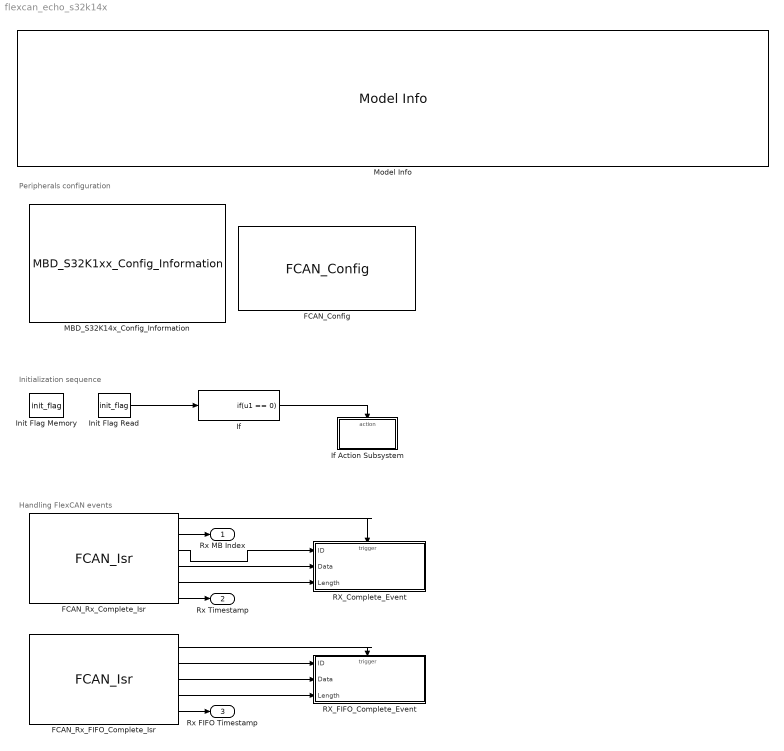
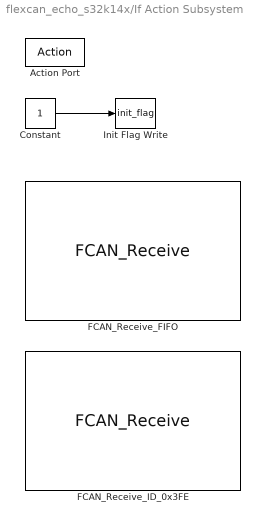
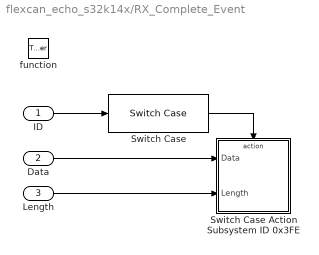
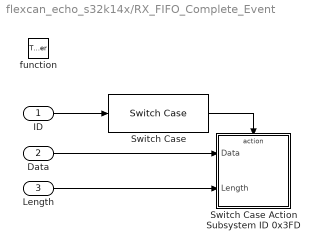
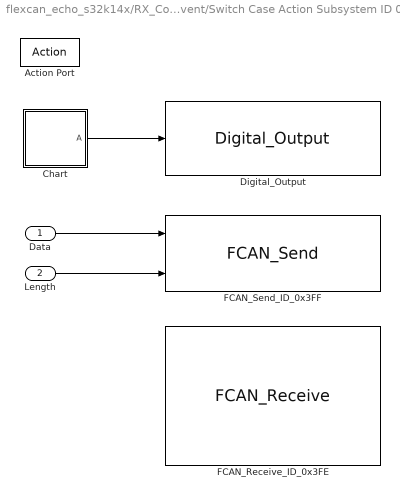
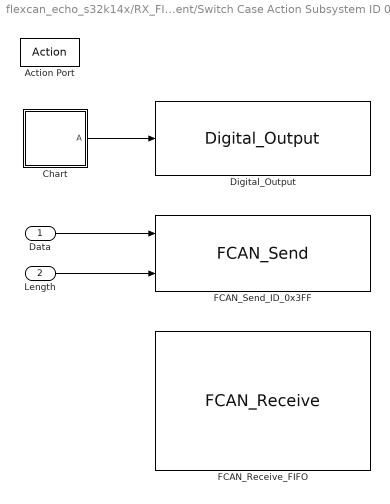
== stateflow chart RX_Complete_Event/Switch Case Action
Subsystem ID 0x3FE/Chart ==
  state A
  state A1
  (default) -> A
  A -> A1
  A1 -> A
  data: A output boolean [0..1]

== stateflow chart RX_FIFO_Complete_Event/Switch Case Action
Subsystem ID 0x3FD/Chart ==
  state A
  state A1
  (default) -> A
  A -> A1
  A1 -> A
  data: A output boolean [0..1]

/*
 * Academic License - for use in teaching, academic research, and meeting
 * course requirements at degree granting institutions only.  Not for
 * government, commercial, or other organizational use.
 *
 * File: flexcan_echo_s32k14x.c
 *
 * Code generated for Simulink model 'flexcan_echo_s32k14x'.
 *
 * Model version                   : 1.444
 * Simulink Coder version          : 9.0 (R2018b) 24-May-2018
 * MBDT for S32K1xx Series Version : 4.1.0 (R2017b-R2019a) 22-Jul-2019
 * C/C++ source code generated on  : Sat Apr  4 21:03:17 2020
 *
 * Target selection: mbd_s32k.tlc
 * Embedded hardware selection: ARM Compatible->ARM Cortex
 * Code generation objectives: Unspecified
 * Validation result: Not run
 */

#include "flexcan_echo_s32k14x.h"
#include "flexcan_echo_s32k14x_private.h"

/* Named constants for Chart: '<S5>/Chart' */
#define flexcan_echo_IN_NO_ACTIVE_CHILD ((uint8_T)0U)
#define flexcan_echo_s32k14x_IN_A      ((uint8_T)1U)
#define flexcan_echo_s32k14x_IN_A1     ((uint8_T)2U)

/* Block signals (default storage) */
B_flexcan_echo_s32k14x_T flexcan_echo_s32k14x_B;

/* Block states (default storage) */
DW_flexcan_echo_s32k14x_T flexcan_echo_s32k14x_DW;

/* External outputs (root outports fed by signals with default storage) */
ExtY_flexcan_echo_s32k14x_T flexcan_echo_s32k14x_Y;

/* Real-time model */
RT_MODEL_flexcan_echo_s32k14x_T flexcan_echo_s32k14x_M_;
RT_MODEL_flexcan_echo_s32k14x_T *const flexcan_echo_s32k14x_M =
  &flexcan_echo_s32k14x_M_;
flexcan_msgbuff_t canCom0_recvBuff14;
flexcan_msgbuff_t canCom0_recvBuffFifo;
flexcan_state_t canCom0_State;

/*
 * System initialize for atomic system:
 *    '<S5>/Chart'
 *    '<S7>/Chart'
 */
void flexcan_echo_s32k14x_Chart_Init(B_Chart_flexcan_echo_s32k14x_T *localB,
  DW_Chart_flexcan_echo_s32k14x_T *localDW)
{
  localDW->is_active_c2_flexcan_echo_s32k1 = 0U;
  localDW->is_c2_flexcan_echo_s32k14x = flexcan_echo_IN_NO_ACTIVE_CHILD;
  localB->A = false;
}

/*
 * Output and update for atomic system:
 *    '<S5>/Chart'
 *    '<S7>/Chart'
 */
void flexcan_echo_s32k14x_Chart(B_Chart_flexcan_echo_s32k14x_T *localB,
  DW_Chart_flexcan_echo_s32k14x_T *localDW)
{
  /* Chart: '<S5>/Chart' */
  /* Gateway: RX_Complete_Event/Switch Case Action
     Subsystem ID 0x3FE/Chart */
  /* During: RX_Complete_Event/Switch Case Action
     Subsystem ID 0x3FE/Chart */
  if (localDW->is_active_c2_flexcan_echo_s32k1 == 0U) {
    /* Entry: RX_Complete_Event/Switch Case Action
       Subsystem ID 0x3FE/Chart */
    localDW->is_active_c2_flexcan_echo_s32k1 = 1U;

    /* Entry Internal: RX_Complete_Event/Switch Case Action
       Subsystem ID 0x3FE/Chart */
    /* Transition: '<S6>:1' */
    localDW->is_c2_flexcan_echo_s32k14x = flexcan_echo_s32k14x_IN_A;
    localB->A = true;
  } else if (localDW->is_c2_flexcan_echo_s32k14x == flexcan_echo_s32k14x_IN_A) {
    /* During 'A': '<S6>:3' */
    /* Transition: '<S6>:7' */
    localB->A = false;
    localDW->is_c2_flexcan_echo_s32k14x = flexcan_echo_s32k14x_IN_A1;
  } else {
    /* During 'A1': '<S6>:6' */
    /* Transition: '<S6>:8' */
    localDW->is_c2_flexcan_echo_s32k14x = flexcan_echo_s32k14x_IN_A;
    localB->A = true;
  }

  /* End of Chart: '<S5>/Chart' */
}

/* System initialize for function-call system: '<Root>/RX_Complete_Event' */
void flexcan__RX_Complete_Event_Init(void)
{
  /* SystemInitialize for IfAction SubSystem: '<S3>/Switch Case Action Subsystem ID 0x3FE' */

  /* SystemInitialize for Chart: '<S5>/Chart' */
  flexcan_echo_s32k14x_Chart_Init(&flexcan_echo_s32k14x_B.sf_Chart,
    &flexcan_echo_s32k14x_DW.sf_Chart);

  /* End of SystemInitialize for SubSystem: '<S3>/Switch Case Action Subsystem ID 0x3FE' */
}

/* Start for function-call system: '<Root>/RX_Complete_Event' */
void flexcan_RX_Complete_Event_Start(void)
{
  /* Start for IfAction SubSystem: '<S3>/Switch Case Action Subsystem ID 0x3FE' */

  /* Start for S-Function (gpio_s32k_output): '<S5>/Digital_Output' */
  {
    /* Enable clock for PORTD */
    PCC_SetClockMode(PCC, PCC_PORTD_CLOCK, true);

    /* Configure the output port init structure. */
    const pin_settings_config_t gpioPORTDPin15 = {
      .base = PORTD,
      .pinPortIdx = 15,
      .pullConfig = PORT_INTERNAL_PULL_NOT_ENABLED,
      .passiveFilter = false,
      .driveSelect = PORT_LOW_DRIVE_STRENGTH,
      .mux = PORT_MUX_AS_GPIO,
      .pinLock = false,
      .intConfig = PORT_DMA_INT_DISABLED,
      .clearIntFlag = true,
      .gpioBase = PTD,
      .direction = GPIO_OUTPUT_DIRECTION,
      .initValue = 0U
    };

    /* Initialize GPIPORTD15. */
    PINS_DRV_Init(1, &gpioPORTDPin15);
  }

  /* Start for S-Function (fcan_s32k_receive): '<S5>/FCAN_Receive_ID_0x3FE' */
  {
    flexcan_msgbuff_id_type_t msg_id_type = FLEXCAN_MSG_ID_STD;
    flexcan_data_info_t rxInfo = {
      .msg_id_type = FLEXCAN_MSG_ID_STD,
      .data_length = 8,
      .fd_enable = false,
      .fd_padding = 0,
      .enable_brs = false,
      .is_remote = false
    };

    FLEXCAN_DRV_ConfigRxMb(0, 14, &rxInfo, 0x3FE);
    FLEXCAN_DRV_SetRxMaskType(0, FLEXCAN_RX_MASK_INDIVIDUAL);
    FLEXCAN_DRV_SetRxIndividualMask(0, msg_id_type, 14, 0xFFFFFFFF);
  }

  /* End of Start for SubSystem: '<S3>/Switch Case Action Subsystem ID 0x3FE' */
}

/* Output and update for function-call system: '<Root>/RX_Complete_Event' */
void flexcan_echo__RX_Complete_Event(void)
{
  /* SwitchCase: '<S3>/Switch Case' */
  if ((int32_T)flexcan_echo_s32k14x_B.FCAN_Rx_Complete_Isr_o3 == 1022) {
    /* Outputs for IfAction SubSystem: '<S3>/Switch Case Action Subsystem ID 0x3FE' incorporates:
     *  ActionPort: '<S5>/Action Port'
     */
    /* S-Function (fcan_s32k_send): '<S5>/FCAN_Send_ID_0x3FF' */
    {
      flexcan_data_info_t txInfo = {
        .msg_id_type = FLEXCAN_MSG_ID_STD,
        .data_length = flexcan_echo_s32k14x_B.FCAN_Rx_Complete_Isr_o5,
        .fd_enable = false,
        .fd_padding = 0x0,
        .enable_brs = false,
        .is_remote = false
      };

      FLEXCAN_DRV_ConfigTxMb(0, 15, &txInfo, 0x3FF);
      FLEXCAN_DRV_Send(0, 15, &txInfo, 0x3FF,
                       &flexcan_echo_s32k14x_B.FCAN_Rx_Complete_Isr_o4[0]);
    }

    /* Chart: '<S5>/Chart' */
    flexcan_echo_s32k14x_Chart(&flexcan_echo_s32k14x_B.sf_Chart,
      &flexcan_echo_s32k14x_DW.sf_Chart);

    /* S-Function (gpio_s32k_output): '<S5>/Digital_Output' */

    /* GPOPORTD15 Data Signal Update */
    if (flexcan_echo_s32k14x_B.sf_Chart.A) {
      PINS_DRV_SetPins(PTD, 1UL<<15);
    } else {
      PINS_DRV_ClearPins(PTD, 1UL<<15);
    }

    /* S-Function (fcan_s32k_receive): '<S5>/FCAN_Receive_ID_0x3FE' */
    FLEXCAN_DRV_Receive(0, 14, &canCom0_recvBuff14);

    /* End of Outputs for SubSystem: '<S3>/Switch Case Action Subsystem ID 0x3FE' */
  }

  /* End of SwitchCase: '<S3>/Switch Case' */
}

/* System initialize for function-call system: '<Root>/RX_FIFO_Complete_Event' */
void fle_RX_FIFO_Complete_Event_Init(void)
{
  /* SystemInitialize for IfAction SubSystem: '<S4>/Switch Case Action Subsystem ID 0x3FD' */

  /* SystemInitialize for Chart: '<S7>/Chart' */
  flexcan_echo_s32k14x_Chart_Init(&flexcan_echo_s32k14x_B.sf_Chart_g,
    &flexcan_echo_s32k14x_DW.sf_Chart_g);

  /* End of SystemInitialize for SubSystem: '<S4>/Switch Case Action Subsystem ID 0x3FD' */
}

/* Start for function-call system: '<Root>/RX_FIFO_Complete_Event' */
void fl_RX_FIFO_Complete_Event_Start(void)
{
  /* Start for IfAction SubSystem: '<S4>/Switch Case Action Subsystem ID 0x3FD' */

  /* Start for S-Function (gpio_s32k_output): '<S7>/Digital_Output' */
  {
    /* Enable clock for PORTD */
    PCC_SetClockMode(PCC, PCC_PORTD_CLOCK, true);

    /* Configure the output port init structure. */
    const pin_settings_config_t gpioPORTDPin16 = {
      .base = PORTD,
      .pinPortIdx = 16,
      .pullConfig = PORT_INTERNAL_PULL_NOT_ENABLED,
      .passiveFilter = false,
      .driveSelect = PORT_LOW_DRIVE_STRENGTH,
      .mux = PORT_MUX_AS_GPIO,
      .pinLock = false,
      .intConfig = PORT_DMA_INT_DISABLED,
      .clearIntFlag = true,
      .gpioBase = PTD,
      .direction = GPIO_OUTPUT_DIRECTION,
      .initValue = 0U
    };

    /* Initialize GPIPORTD16. */
    PINS_DRV_Init(1, &gpioPORTDPin16);
  }

  /* End of Start for SubSystem: '<S4>/Switch Case Action Subsystem ID 0x3FD' */
}

/* Output and update for function-call system: '<Root>/RX_FIFO_Complete_Event' */
void flexcan__RX_FIFO_Complete_Event(void)
{
  /* SwitchCase: '<S4>/Switch Case' */
  if ((int32_T)flexcan_echo_s32k14x_B.FCAN_Rx_FIFO_Complete_Isr_o2 == 1021) {
    /* Outputs for IfAction SubSystem: '<S4>/Switch Case Action Subsystem ID 0x3FD' incorporates:
     *  ActionPort: '<S7>/Action Port'
     */
    /* S-Function (fcan_s32k_send): '<S7>/FCAN_Send_ID_0x3FF' */
    {
      flexcan_data_info_t txInfo = {
        .msg_id_type = FLEXCAN_MSG_ID_STD,
        .data_length = flexcan_echo_s32k14x_B.FCAN_Rx_FIFO_Complete_Isr_o4,
        .fd_enable = false,
        .fd_padding = 0x0,
        .enable_brs = false,
        .is_remote = false
      };

      FLEXCAN_DRV_ConfigTxMb(0, 15, &txInfo, 0x3FF);
      FLEXCAN_DRV_Send(0, 15, &txInfo, 0x3FF,
                       &flexcan_echo_s32k14x_B.FCAN_Rx_FIFO_Complete_Isr_o3[0]);
    }

    /* Chart: '<S7>/Chart' */
    flexcan_echo_s32k14x_Chart(&flexcan_echo_s32k14x_B.sf_Chart_g,
      &flexcan_echo_s32k14x_DW.sf_Chart_g);

    /* S-Function (gpio_s32k_output): '<S7>/Digital_Output' */

    /* GPOPORTD16 Data Signal Update */
    if (flexcan_echo_s32k14x_B.sf_Chart_g.A) {
      PINS_DRV_SetPins(PTD, 1UL<<16);
    } else {
      PINS_DRV_ClearPins(PTD, 1UL<<16);
    }

    /* S-Function (fcan_s32k_receive): '<S7>/FCAN_Receive_FIFO' */
    FLEXCAN_DRV_RxFifo(0, &canCom0_recvBuffFifo);

    /* End of Outputs for SubSystem: '<S4>/Switch Case Action Subsystem ID 0x3FD' */
  }

  /* End of SwitchCase: '<S4>/Switch Case' */
}

/* Model step function */
void flexcan_echo_s32k14x_step(void)
{
  /* Outport: '<Root>/Rx MB Index' incorporates:
   *  Outport: '<Root>/Rx Timestamp'
   */

  /* Outport: '<Root>/Rx FIFO Timestamp' */

  /* If: '<Root>/If' incorporates:
   *  DataStoreRead: '<Root>/Init Flag Read'
   */
  if (flexcan_echo_s32k14x_DW.init_flag == 0U) {
    /* Outputs for IfAction SubSystem: '<Root>/If Action Subsystem' incorporates:
     *  ActionPort: '<S1>/Action Port'
     */
    /* DataStoreWrite: '<S1>/Init Flag Write' incorporates:
     *  Constant: '<S1>/Constant'
     */
    flexcan_echo_s32k14x_DW.init_flag = 1U;

    /* S-Function (fcan_s32k_receive): '<S1>/FCAN_Receive_FIFO' */
    FLEXCAN_DRV_RxFifo(0, &canCom0_recvBuffFifo);

    /* S-Function (fcan_s32k_receive): '<S1>/FCAN_Receive_ID_0x3FE' */
    FLEXCAN_DRV_Receive(0, 14, &canCom0_recvBuff14);

    /* End of Outputs for SubSystem: '<Root>/If Action Subsystem' */
  }

  /* End of If: '<Root>/If' */
}
